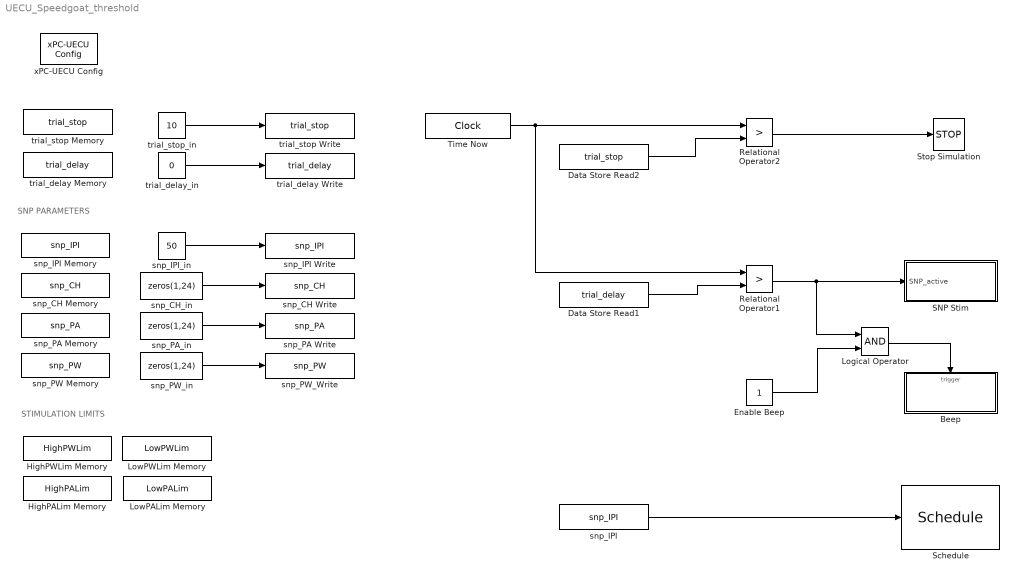
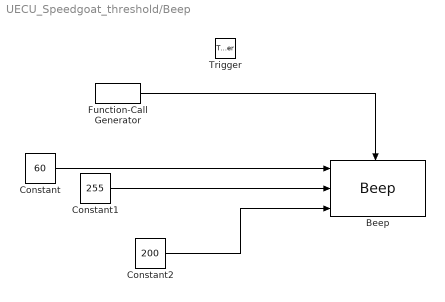
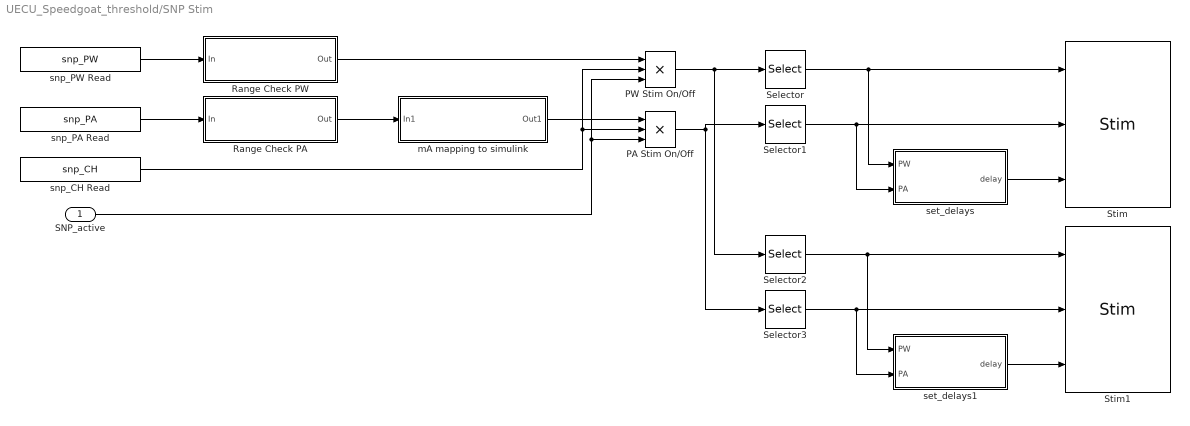
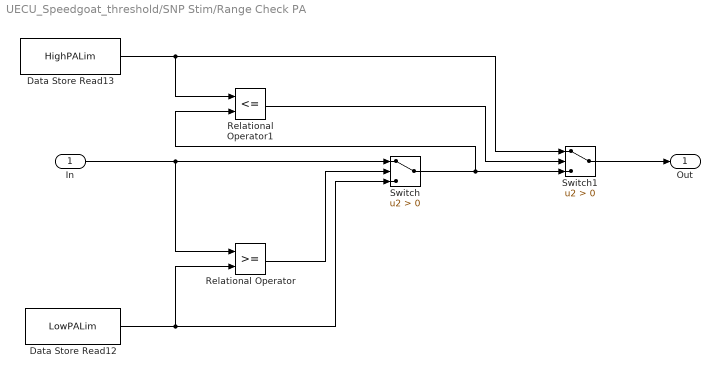
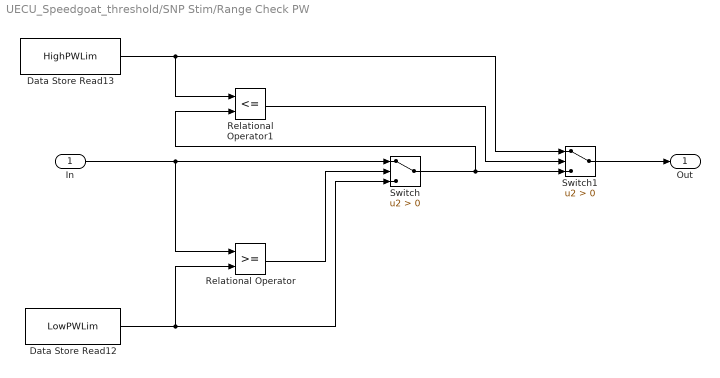
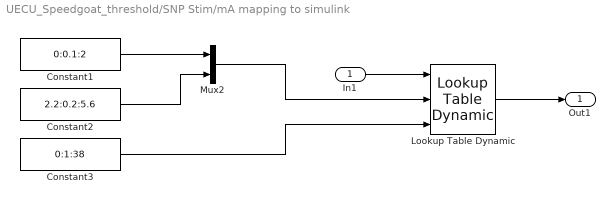
== matlab function UECU_Speedgoat_threshold/SNP Stim/set_delays ==
function delay = set_delays(PW, PA)

PWA = PW.*PA; % figure out which channels have stim
L = length(PWA(PWA~=0)); % find the total number of channels with stim
d = uint8(1:L); % set the delay vector based on the number of channels with stim
PWA(PWA~=0) = d;
delay=uint16(PWA);

== matlab function UECU_Speedgoat_threshold/SNP Stim/set_delays1 ==
function delay = set_delays(PW, PA)

PWA = PW.*PA; % figure out which channels have stim
L = length(PWA(PWA~=0)); % find the total number of channels with stim
d = uint8(1:L); % set the delay vector based on the number of channels with stim
PWA(PWA~=0) = d;
delay=uint16(PWA);

/*
 * UECU_Speedgoat_threshold.cpp
 *
 * Academic License - for use in teaching, academic research, and meeting
 * course requirements at degree granting institutions only.  Not for
 * government, commercial, or other organizational use.
 *
 * Code generation for model "UECU_Speedgoat_threshold".
 *
 * Model version              : 21.61
 * Simulink Coder version : 9.4 (R2020b) 29-Jul-2020
 * C++ source code generated on : Thu Mar 24 12:56:50 2022
 *
 * Target selection: slrealtime.tlc
 * Note: GRT includes extra infrastructure and instrumentation for prototyping
 * Embedded hardware selection: Intel->x86-64 (Linux 64)
 * Code generation objectives: Unspecified
 * Validation result: Not run
 */

#include "UECU_Speedgoat_threshold.h"
#include "UECU_Speedgoat_threshold_private.h"

/* Block signals (default storage) */
B_UECU_Speedgoat_threshold_T UECU_Speedgoat_threshold_B;

/* Block states (default storage) */
DW_UECU_Speedgoat_threshold_T UECU_Speedgoat_threshold_DW;

/* Previous zero-crossings (trigger) states */
PrevZCX_UECU_Speedgoat_thresh_T UECU_Speedgoat_threshol_PrevZCX;

/* Real-time model */
RT_MODEL_UECU_Speedgoat_thres_T UECU_Speedgoat_threshold_M_ =
  RT_MODEL_UECU_Speedgoat_thres_T();
RT_MODEL_UECU_Speedgoat_thres_T *const UECU_Speedgoat_threshold_M =
  &UECU_Speedgoat_threshold_M_;
static const char rcs1[] =
  "$Id: ueculib.tlc 1.34 2011/11/21 19:10:30Z fes-tvrabec Rel $";
static const char rcs2[] =
  "$Id: tonebeep.tlc 1.13 2006/02/10 19:30:21Z sct Rel $";
static const char rcs3[] = "$Id: stim_s.tlc 1.23 2007/11/14 21:56:40Z sct Rel $";
static const char rcs4[] =
  "$Id: schedule.tlc 1.20 2007/11/08 15:06:14Z sct Rel $";
static const char rcs5[] =
  "$Id: uecuxpc.tlc 1.12 2011/11/21 19:11:33Z fes-tvrabec Rel $";
u_char sid[NUM_SID];
u_char syncsig[NUM_SYNC];

/* Lookup Binary Search Utility BINARYSEARCH_real_T */
void BINARYSEARCH_real_T(uint32_T *piLeft, uint32_T *piRght, real_T u, const
  real_T *pData, uint32_T iHi)
{
  /* Find the location of current input value in the data table. */
  *piLeft = 0U;
  *piRght = iHi;
  if (u <= pData[0] ) {
    /* Less than or equal to the smallest point in the table. */
    *piRght = 0U;
  } else if (u >= pData[iHi] ) {
    /* Greater than or equal to the largest point in the table. */
    *piLeft = iHi;
  } else {
    uint32_T i;

    /* Do a binary search. */
    while (( *piRght - *piLeft ) > 1U ) {
      /* Get the average of the left and right indices using to Floor rounding. */
      i = (*piLeft + *piRght) >> 1;

      /* Move either the right index or the left index so that */
      /*  LeftDataPoint <= CurrentValue < RightDataPoint */
      if (u < pData[i] ) {
        *piRght = i;
      } else {
        *piLeft = i;
      }
    }
  }
}

/* Lookup Utility LookUp_U8_real_T */
void LookUp_U8_real_T(uint8_T *pY, const uint8_T *pYData, real_T u, const real_T
                      *pUData, uint32_T iHi)
{
  uint32_T iLeft;
  uint32_T iRght;
  BINARYSEARCH_real_T( &(iLeft), &(iRght), u, pUData, iHi);

  {
    real_T lambda;
    if (pUData[iRght] > pUData[iLeft] ) {
      real_T num;
      real_T den;
      den = pUData[iRght];
      den -= pUData[iLeft];
      num = u;
      num -= pUData[iLeft];
      lambda = num / den;
    } else {
      lambda = 0.0;
    }

    {
      real_T yLeftCast;
      real_T yRghtCast;
      yLeftCast = static_cast<real_T>(pYData[iLeft]);
      yRghtCast = static_cast<real_T>(pYData[iRght]);
      yLeftCast += lambda * ( yRghtCast - yLeftCast );

      {
        real_T rtb_dbl_tmp;
        rtb_dbl_tmp = std::floor(yLeftCast);
        if (rtIsNaN(rtb_dbl_tmp) || rtIsInf(rtb_dbl_tmp)) {
          rtb_dbl_tmp = 0.0;
        } else {
          rtb_dbl_tmp = std::fmod(rtb_dbl_tmp, 256.0);
        }

        (*pY) = rtb_dbl_tmp < 0.0 ? static_cast<uint8_T>(static_cast<int8_T>(-
          static_cast<int8_T>(static_cast<uint8_T>(-rtb_dbl_tmp)))) :
          static_cast<uint8_T>(rtb_dbl_tmp);
      }
    }
  }
}

/*
 * In order to generate Sync messages for synchronous schedules,
 * it is necessary to intercept calls to the MdlOutputs function.
 * This is done by generating our own MdlOutputs, then using a
 * #define to rename the MdlOutputs function generated by RTW.
 * Thus, the system's main function just knows it's calling
 * MdlOutputs, and through sleight of hand we get our function
 * called first, then we chain
 */

/*
 *	In the newest version of Simulink, MdlOutputs reverts to MdlOutpus for
 *	standalone applications, but is called <modelname>_step for simulink realtime.
 *	All calls to MdlOutputs now include tid, but is ignored for single rate
 *	systems. Pass 0 as necessary.
 */
void uecuOriginalMdlOutputs(void);
void UECU_Speedgoat_threshold_step(void)
{
  uecuOriginalMdlOutputs();
}

#define UECU_Speedgoat_threshold_step  uecuOriginalMdlOutputs

/*
 * Output and update for atomic system:
 *    '<S2>/set_delays'
 *    '<S2>/set_delays1'
 */
void UECU_Speedgoat_thres_set_delays(const uint8_T rtu_PW[12], const uint8_T
  rtu_PA[12], B_set_delays_UECU_Speedgoat_t_T *localB)
{
  int32_T L;
  int32_T i;
  int32_T trueCount;
  int8_T y_data[12];
  uint8_T PWA[12];
  uint8_T d_data[12];

  /* MATLAB Function 'SNP Stim/set_delays': '<S7>:1' */
  /* '<S7>:1:3' */
  trueCount = 0;
  for (L = 0; L < 12; L++) {
    i = static_cast<int32_T>(static_cast<uint32_T>(rtu_PW[L]) * rtu_PA[L]);
    if (static_cast<uint32_T>(i) > 255U) {
      i = 255;
    }

    PWA[L] = static_cast<uint8_T>(i);
    i = static_cast<int32_T>(static_cast<uint32_T>(rtu_PW[L]) * rtu_PA[L]);
    if (static_cast<uint32_T>(i) > 255U) {
      i = 255;
    }

    if (i != 0) {
      /* '<S7>:1:4' */
      trueCount++;
    }
  }

  /* '<S7>:1:4' */
  L = trueCount;

  /* '<S7>:1:5' */
  if (L < 1) {
    trueCount = 0;
  } else {
    trueCount = static_cast<int8_T>(L);
    L = static_cast<int8_T>(L) - 1;
    for (i = 0; i <= L; i++) {
      y_data[i] = static_cast<int8_T>(i + 1);
    }
  }

  L = trueCount - 1;
  for (i = 0; i <= L; i++) {
    d_data[i] = static_cast<uint8_T>(y_data[i]);
  }

  trueCount = 0;
  for (L = 0; L < 12; L++) {
    i = static_cast<int32_T>(static_cast<uint32_T>(rtu_PW[L]) * rtu_PA[L]);
    if (static_cast<uint32_T>(i) > 255U) {
      i = 255;
    }

    if (i != 0) {
      /* '<S7>:1:6' */
      PWA[L] = d_data[trueCount];
      trueCount++;
    }
  }

  /* '<S7>:1:7' */
  for (i = 0; i < 12; i++) {
    localB->delay[i] = PWA[i];
  }
}

/* Model step function */
void UECU_Speedgoat_threshold_step(void)
{
  int32_T i;
  boolean_T zcEvent;

  /* Reset subsysRan breadcrumbs */
  srClearBC(UECU_Speedgoat_threshold_DW.Beep_SubsysRanBC_a);

  /* Reset subsysRan breadcrumbs */
  srClearBC(UECU_Speedgoat_threshold_DW.Beep_SubsysRanBC);

  /* DataStoreWrite: '<Root>/snp_IPI Write' incorporates:
   *  Constant: '<Root>/snp_IPI_in'
   */
  UECU_Speedgoat_threshold_DW.snp_IPI =
    UECU_Speedgoat_threshold_cal->snp_IPI_in_Value;

  /* DataStoreWrite: '<Root>/snp_PA Write' incorporates:
   *  Constant: '<Root>/snp_PA_in'
   */
  std::memcpy(&UECU_Speedgoat_threshold_DW.snp_PA[0],
              &UECU_Speedgoat_threshold_cal->snp_PA_in_Value[0], 24U * sizeof
              (real_T));
  for (i = 0; i < 24; i++) {
    /* DataStoreWrite: '<Root>/snp_CH Write' incorporates:
     *  Constant: '<Root>/snp_CH_in'
     */
    UECU_Speedgoat_threshold_DW.snp_CH[i] =
      UECU_Speedgoat_threshold_cal->snp_CH_in_Value[i];

    /* DataStoreWrite: '<Root>/snp_PW_Write' incorporates:
     *  Constant: '<Root>/snp_PW_in'
     */
    UECU_Speedgoat_threshold_DW.snp_PW[i] =
      UECU_Speedgoat_threshold_cal->snp_PW_in_Value[i];
  }

  /* DataStoreWrite: '<Root>/trial_delay Write' incorporates:
   *  Constant: '<Root>/trial_delay_in'
   */
  UECU_Speedgoat_threshold_DW.trial_delay =
    UECU_Speedgoat_threshold_cal->trial_delay_in_Value;

  /* DataStoreWrite: '<Root>/trial_stop Write' incorporates:
   *  Constant: '<Root>/trial_stop_in'
   */
  UECU_Speedgoat_threshold_DW.trial_stop =
    UECU_Speedgoat_threshold_cal->trial_stop_in_Value;

  /* DigitalClock: '<Root>/Time Now' */
  UECU_Speedgoat_threshold_B.TimeNow =
    (((UECU_Speedgoat_threshold_M->Timing.clockTick1+
       UECU_Speedgoat_threshold_M->Timing.clockTickH1* 4294967296.0)) * 0.001);

  /* DataStoreRead: '<Root>/Data Store Read1' */
  UECU_Speedgoat_threshold_B.DataStoreRead1 =
    UECU_Speedgoat_threshold_DW.trial_delay;

  /* RelationalOperator: '<Root>/Relational Operator1' */
  UECU_Speedgoat_threshold_B.RelationalOperator1 =
    (UECU_Speedgoat_threshold_B.TimeNow >
     UECU_Speedgoat_threshold_B.DataStoreRead1);

  /* Logic: '<Root>/Logical Operator' incorporates:
   *  Constant: '<Root>/Enable Beep'
   */
  UECU_Speedgoat_threshold_B.LogicalOperator =
    (UECU_Speedgoat_threshold_B.RelationalOperator1 &&
     UECU_Speedgoat_threshold_cal->EnableBeep_Value);

  /* Outputs for Triggered SubSystem: '<Root>/Beep' incorporates:
   *  TriggerPort: '<S1>/Trigger'
   */
  zcEvent = (UECU_Speedgoat_threshold_B.LogicalOperator &&
             (UECU_Speedgoat_threshol_PrevZCX.Beep_Trig_ZCE != POS_ZCSIG));
  if (zcEvent) {
    /* S-Function (fcgen): '<S1>/Function-Call Generator' incorporates:
     *  SubSystem: '<S1>/Beep'
     */
    /* S-Function (tonebeep): '<S3>/S-Function' incorporates:
     *  Constant: '<S1>/Constant'
     *  Constant: '<S1>/Constant1'
     *  Constant: '<S1>/Constant2'
     */
    {
      struct MelodyNote n[4];
      n[0].note = NOTE_CLEAR;          /* Interrupt anything already playing */
      n[0].dur = 0;
      n[1].note = NOTE_ADDR;           /* Select the system module */
      n[1].dur = 11;
      n[2].note = NOTE_VOL;            /* Select the volume */
      n[2].dur = UECU_Speedgoat_threshold_cal->Constant1_Value_l;
      n[3].note = UECU_Speedgoat_threshold_cal->Constant_Value;/* Play the beep */
      n[3].dur = UECU_Speedgoat_threshold_cal->Constant2_Value_n;
      if (n[3].note < 128) {
        if (melody(0, n, sizeof(n) / sizeof(n[0]))) {
          rtmSetErrorStatus(UECU_Speedgoat_threshold_M, uerror("melody",
            __FILE__, __LINE__));
          return;
        }
      }
    }

    UECU_Speedgoat_threshold_DW.Beep_SubsysRanBC_a = 4;

    /* End of Outputs for S-Function (fcgen): '<S1>/Function-Call Generator' */
    UECU_Speedgoat_threshold_DW.Beep_SubsysRanBC = 4;
  }

  UECU_Speedgoat_threshol_PrevZCX.Beep_Trig_ZCE =
    UECU_Speedgoat_threshold_B.LogicalOperator;

  /* End of Outputs for SubSystem: '<Root>/Beep' */

  /* Outputs for Atomic SubSystem: '<Root>/SNP Stim' */
  /* DataStoreRead: '<S5>/Data Store Read13' */
  UECU_Speedgoat_threshold_B.DataStoreRead13_k =
    UECU_Speedgoat_threshold_DW.HighPWLim;

  /* DataStoreRead: '<S5>/Data Store Read12' */
  UECU_Speedgoat_threshold_B.DataStoreRead12_j =
    UECU_Speedgoat_threshold_DW.LowPWLim;
  for (i = 0; i < 24; i++) {
    /* DataStoreRead: '<S2>/snp_PW Read' */
    UECU_Speedgoat_threshold_B.snp_PWRead[i] =
      UECU_Speedgoat_threshold_DW.snp_PW[i];

    /* RelationalOperator: '<S5>/Relational Operator' */
    UECU_Speedgoat_threshold_B.RelationalOperator[i] =
      (UECU_Speedgoat_threshold_B.snp_PWRead[i] >=
       UECU_Speedgoat_threshold_B.DataStoreRead12_j);

    /* Switch: '<S5>/Switch' */
    if (UECU_Speedgoat_threshold_B.RelationalOperator[i]) {
      /* Switch: '<S5>/Switch' */
      UECU_Speedgoat_threshold_B.Switch_b[i] =
        UECU_Speedgoat_threshold_B.snp_PWRead[i];
    } else {
      /* Switch: '<S5>/Switch' */
      UECU_Speedgoat_threshold_B.Switch_b[i] =
        UECU_Speedgoat_threshold_B.DataStoreRead12_j;
    }

    /* End of Switch: '<S5>/Switch' */

    /* RelationalOperator: '<S5>/Relational Operator1' */
    UECU_Speedgoat_threshold_B.RelationalOperator1_a[i] =
      (UECU_Speedgoat_threshold_B.DataStoreRead13_k <=
       UECU_Speedgoat_threshold_B.Switch_b[i]);

    /* Switch: '<S5>/Switch1' */
    if (UECU_Speedgoat_threshold_B.RelationalOperator1_a[i]) {
      /* Switch: '<S5>/Switch1' */
      UECU_Speedgoat_threshold_B.Switch1_a[i] =
        UECU_Speedgoat_threshold_B.DataStoreRead13_k;
    } else {
      /* Switch: '<S5>/Switch1' */
      UECU_Speedgoat_threshold_B.Switch1_a[i] =
        UECU_Speedgoat_threshold_B.Switch_b[i];
    }

    /* End of Switch: '<S5>/Switch1' */

    /* DataStoreRead: '<S2>/snp_CH Read' */
    UECU_Speedgoat_threshold_B.snp_CHRead[i] =
      UECU_Speedgoat_threshold_DW.snp_CH[i];
  }

  for (i = 0; i < 24; i++) {
    /* Product: '<S2>/PW Stim On//Off' */
    UECU_Speedgoat_threshold_B.PWStimOnOff[i] = static_cast<uint8_T>
      (UECU_Speedgoat_threshold_B.RelationalOperator1 ?
       UECU_Speedgoat_threshold_B.snp_CHRead[i] ? static_cast<int32_T>
       (UECU_Speedgoat_threshold_B.Switch1_a[i]) : 0 : 0);
  }

  /* DataStoreRead: '<S4>/Data Store Read13' */
  UECU_Speedgoat_threshold_B.DataStoreRead13 =
    UECU_Speedgoat_threshold_DW.HighPALim;

  /* DataStoreRead: '<S4>/Data Store Read12' */
  UECU_Speedgoat_threshold_B.DataStoreRead12 =
    UECU_Speedgoat_threshold_DW.LowPALim;
  for (i = 0; i < 24; i++) {
    /* DataStoreRead: '<S2>/snp_PA Read' */
    UECU_Speedgoat_threshold_B.snp_PARead[i] =
      UECU_Speedgoat_threshold_DW.snp_PA[i];

    /* RelationalOperator: '<S4>/Relational Operator' */
    UECU_Speedgoat_threshold_B.RelationalOperator_i[i] =
      (UECU_Speedgoat_threshold_B.snp_PARead[i] >=
       UECU_Speedgoat_threshold_B.DataStoreRead12);

    /* Switch: '<S4>/Switch' */
    if (UECU_Speedgoat_threshold_B.RelationalOperator_i[i]) {
      /* Switch: '<S4>/Switch' */
      UECU_Speedgoat_threshold_B.Switch[i] =
        UECU_Speedgoat_threshold_B.snp_PARead[i];
    } else {
      /* Switch: '<S4>/Switch' */
      UECU_Speedgoat_threshold_B.Switch[i] =
        UECU_Speedgoat_threshold_B.DataStoreRead12;
    }

    /* End of Switch: '<S4>/Switch' */

    /* RelationalOperator: '<S4>/Relational Operator1' */
    UECU_Speedgoat_threshold_B.RelationalOperator1_m[i] =
      (UECU_Speedgoat_threshold_B.DataStoreRead13 <=
       UECU_Speedgoat_threshold_B.Switch[i]);
  }

  for (i = 0; i < 24; i++) {
    /* Switch: '<S4>/Switch1' */
    if (UECU_Speedgoat_threshold_B.RelationalOperator1_m[i]) {
      /* Switch: '<S4>/Switch1' */
      UECU_Speedgoat_threshold_B.Switch1[i] =
        UECU_Speedgoat_threshold_B.DataStoreRead13;
    } else {
      /* Switch: '<S4>/Switch1' */
      UECU_Speedgoat_threshold_B.Switch1[i] =
        UECU_Speedgoat_threshold_B.Switch[i];
    }

    /* End of Switch: '<S4>/Switch1' */
  }

  /* SignalConversion generated from: '<S6>/Lookup Table Dynamic' incorporates:
   *  Constant: '<S6>/Constant1'
   *  Constant: '<S6>/Constant2'
   */
  std::memcpy(&UECU_Speedgoat_threshold_B.TmpSignalConversionAtLookupTabl[0],
              &UECU_Speedgoat_threshold_cal->Constant1_Value[0], 21U * sizeof
              (real_T));
  std::memcpy(&UECU_Speedgoat_threshold_B.TmpSignalConversionAtLookupTabl[21],
              &UECU_Speedgoat_threshold_cal->Constant2_Value[0], 18U * sizeof
              (real_T));

  /* S-Function (sfix_look1_dyn): '<S6>/Lookup Table Dynamic' incorporates:
   *  Constant: '<S6>/Constant3'
   */
  /* Dynamic Look-Up Table Block: '<S6>/Lookup Table Dynamic'
   * Input0  Data Type:  Floating Point real_T
   * Input1  Data Type:  Floating Point real_T
   * Input2  Data Type:  Integer        U8
   * Output0 Data Type:  Integer        U8
   * Lookup Method: Linear_Endpoint
   *
   */
  {
    int_T i1;
    const real_T *u0 = &UECU_Speedgoat_threshold_B.Switch1[0];
    uint8_T *y0 = &UECU_Speedgoat_threshold_B.LookupTableDynamic[0];
    for (i1=0; i1 < 24; i1++) {
      LookUp_U8_real_T( &(y0[i1]),
                       &UECU_Speedgoat_threshold_cal->Constant3_Value[0], u0[i1],
                       &UECU_Speedgoat_threshold_B.TmpSignalConversionAtLookupTabl
                       [0], 38U);
    }
  }

  for (i = 0; i < 24; i++) {
    /* Product: '<S2>/PA Stim On//Off' */
    UECU_Speedgoat_threshold_B.PAStimOnOff[i] = static_cast<uint8_T>
      (UECU_Speedgoat_threshold_B.RelationalOperator1 ?
       UECU_Speedgoat_threshold_B.snp_CHRead[i] ? static_cast<int32_T>
       (UECU_Speedgoat_threshold_B.LookupTableDynamic[i]) : 0 : 0);
  }

  /* MATLAB Function: '<S2>/set_delays' */
  UECU_Speedgoat_thres_set_delays(&UECU_Speedgoat_threshold_B.PWStimOnOff[0],
    &UECU_Speedgoat_threshold_B.PAStimOnOff[0],
    &UECU_Speedgoat_threshold_B.sf_set_delays);

  /* S-Function (stim_s): '<S2>/Stim' */
  {
    struct StimEvent ev;
    ev.reserved = 0;

    {
      int_T i1;
      const uint8_T *u0 = &UECU_Speedgoat_threshold_B.PWStimOnOff[0];
      const uint8_T *u1 = &UECU_Speedgoat_threshold_B.PAStimOnOff[0];
      const uint16_T *u2 = &UECU_Speedgoat_threshold_B.sf_set_delays.delay[0];
      const uint8_T *p_Channels = UECU_Speedgoat_threshold_ConstP.pooled2;
      uint8_T *dw_EventID = &UECU_Speedgoat_threshold_DW.Stim_EventID[0];
      boolean_T *dw_Created = &UECU_Speedgoat_threshold_DW.Stim_Created[0];
      uint8_T *dw_PW = &UECU_Speedgoat_threshold_DW.Stim_PW[0];
      uint8_T *dw_Amp = &UECU_Speedgoat_threshold_DW.Stim_Amp[0];
      uint16_T *dw_Delay = &UECU_Speedgoat_threshold_DW.Stim_Delay[0];
      for (i1=0; i1 < 12; i1++) {
        ev.pw = u0[i1];
        ev.amp = u1[i1];
        if (dw_Created[i1]) {
          if (ev.pw != dw_PW[i1] || ev.amp != dw_Amp[i1]) {
            if (change_event_params(1, dw_EventID[i1], &ev, sizeof(ev)) < 0) {
              rtmSetErrorStatus(UECU_Speedgoat_threshold_M, uerror(
                "change_event_params", __FILE__, __LINE__));
              return;
            }
          }

          if (u2[i1] != dw_Delay[i1]) {
            if (change_event_sched(1, dw_EventID[i1], sid[0], u2[i1], 100) < 0)
            {
              rtmSetErrorStatus(UECU_Speedgoat_threshold_M, uerror(
                "change_event_sched", __FILE__, __LINE__));
              return;
            }
          }
        } else {
          int e;
          dw_EventID[i1] = e = create_event(1, sid[0], u2[i1], 100, et_StimEvent,
            (0 << 6) + (p_Channels[i1]), &ev, sizeof(ev));
          if (e < 0) {
            rtmSetErrorStatus(UECU_Speedgoat_threshold_M, uerror("create_event",
              __FILE__, __LINE__));
            return;
          }

          dw_Created[i1] = 1;
        }

        dw_PW[i1] = ev.pw;
        dw_Amp[i1] = ev.amp;
        dw_Delay[i1] = u2[i1];
      }
    }
  }

  /* MATLAB Function: '<S2>/set_delays1' */
  UECU_Speedgoat_thres_set_delays(&UECU_Speedgoat_threshold_B.PWStimOnOff[12],
    &UECU_Speedgoat_threshold_B.PAStimOnOff[12],
    &UECU_Speedgoat_threshold_B.sf_set_delays1);

  /* S-Function (stim_s): '<S2>/Stim1' */
  {
    struct StimEvent ev;
    ev.reserved = 0;

    {
      int_T i1;
      const uint8_T *u0 = &UECU_Speedgoat_threshold_B.PWStimOnOff[12];
      const uint8_T *u1 = &UECU_Speedgoat_threshold_B.PAStimOnOff[12];
      const uint16_T *u2 = &UECU_Speedgoat_threshold_B.sf_set_delays1.delay[0];
      const uint8_T *p_Channels = UECU_Speedgoat_threshold_ConstP.pooled2;
      uint8_T *dw_EventID = &UECU_Speedgoat_threshold_DW.Stim1_EventID[0];
      boolean_T *dw_Created = &UECU_Speedgoat_threshold_DW.Stim1_Created[0];
      uint8_T *dw_PW = &UECU_Speedgoat_threshold_DW.Stim1_PW[0];
      uint8_T *dw_Amp = &UECU_Speedgoat_threshold_DW.Stim1_Amp[0];
      uint16_T *dw_Delay = &UECU_Speedgoat_threshold_DW.Stim1_Delay[0];
      for (i1=0; i1 < 12; i1++) {
        ev.pw = u0[i1];
        ev.amp = u1[i1];
        if (dw_Created[i1]) {
          if (ev.pw != dw_PW[i1] || ev.amp != dw_Amp[i1]) {
            if (change_event_params(2, dw_EventID[i1], &ev, sizeof(ev)) < 0) {
              rtmSetErrorStatus(UECU_Speedgoat_threshold_M, uerror(
                "change_event_params", __FILE__, __LINE__));
              return;
            }
          }

          if (u2[i1] != dw_Delay[i1]) {
            if (change_event_sched(2, dw_EventID[i1], sid[1], u2[i1], 100) < 0)
            {
              rtmSetErrorStatus(UECU_Speedgoat_threshold_M, uerror(
                "change_event_sched", __FILE__, __LINE__));
              return;
            }
          }
        } else {
          int e;
          dw_EventID[i1] = e = create_event(2, sid[1], u2[i1], 100, et_StimEvent,
            (0 << 6) + (p_Channels[i1]), &ev, sizeof(ev));
          if (e < 0) {
            rtmSetErrorStatus(UECU_Speedgoat_threshold_M, uerror("create_event",
              __FILE__, __LINE__));
            return;
          }

          dw_Created[i1] = 1;
        }

        dw_PW[i1] = ev.pw;
        dw_Amp[i1] = ev.amp;
        dw_Delay[i1] = u2[i1];
      }
    }
  }

  /* End of Outputs for SubSystem: '<Root>/SNP Stim' */

  /* DataStoreRead: '<Root>/Data Store Read2' */
  UECU_Speedgoat_threshold_B.DataStoreRead2 =
    UECU_Speedgoat_threshold_DW.trial_stop;

  /* RelationalOperator: '<Root>/Relational Operator2' */
  UECU_Speedgoat_threshold_B.RelationalOperator2 =
    (UECU_Speedgoat_threshold_B.TimeNow >
     UECU_Speedgoat_threshold_B.DataStoreRead2);

  /* Stop: '<Root>/Stop Simulation' */
  if (UECU_Speedgoat_threshold_B.RelationalOperator2) {
    rtmSetStopRequested(UECU_Speedgoat_threshold_M, 1);
  }

  /* End of Stop: '<Root>/Stop Simulation' */

  /* DataStoreRead: '<Root>/snp_IPI' */
  UECU_Speedgoat_threshold_B.snp_IPI = UECU_Speedgoat_threshold_DW.snp_IPI;

  /* S-Function (schedule): '<Root>/Schedule' */
  /*
   * About '<Root>/Schedule':
   *   Schedule name: schedule1
   */
  {
    u_short dur;
    dur = UECU_Speedgoat_threshold_B.snp_IPI;
    if (dur != UECU_Speedgoat_threshold_DW.Schedule_Duration) {
      /* Change the schedule time */
      if (change_schedule(1, sid[0], syncsig[0], dur) < 0) {/* schedule1 */
        rtmSetErrorStatus(UECU_Speedgoat_threshold_M, uerror("change_schedule",
          __FILE__, __LINE__));
        return;
      }

      if (change_schedule(2, sid[1], syncsig[0], dur) < 0) {/* schedule1 */
        rtmSetErrorStatus(UECU_Speedgoat_threshold_M, uerror("change_schedule",
          __FILE__, __LINE__));
        return;
      }

      if (UECU_Speedgoat_threshold_DW.Schedule_Duration == 0) {
        /* Start the schedule running */
        if (sync(1, syncsig[0]) < 0) { /* schedule1 */
          rtmSetErrorStatus(UECU_Speedgoat_threshold_M, uerror("sync", __FILE__,
            __LINE__));
          return;
        }

        if (sync(2, syncsig[0]) < 0) { /* schedule1 */
          rtmSetErrorStatus(UECU_Speedgoat_threshold_M, uerror("sync", __FILE__,
            __LINE__));
          return;
        }
      }

      UECU_Speedgoat_threshold_DW.Schedule_Duration = dur;
    }
  }

  /* S-Function (uecuxpc): '<Root>/xPC-UECU Config' */
  uecu_poll();

  /* Update absolute time for base rate */
  /* The "clockTick0" counts the number of times the code of this task has
   * been executed. The absolute time is the multiplication of "clockTick0"
   * and "Timing.stepSize0". Size of "clockTick0" ensures timer will not
   * overflow during the application lifespan selected.
   * Timer of this task consists of two 32 bit unsigned integers.
   * The two integers represent the low bits Timing.clockTick0 and the high bits
   * Timing.clockTickH0. When the low bit overflows to 0, the high bits increment.
   */
  if (!(++UECU_Speedgoat_threshold_M->Timing.clockTick0)) {
    ++UECU_Speedgoat_threshold_M->Timing.clockTickH0;
  }

  UECU_Speedgoat_threshold_M->Timing.t[0] =
    UECU_Speedgoat_threshold_M->Timing.clockTick0 *
    UECU_Speedgoat_threshold_M->Timing.stepSize0 +
    UECU_Speedgoat_threshold_M->Timing.clockTickH0 *
    UECU_Speedgoat_threshold_M->Timing.stepSize0 * 4294967296.0;

  {
    /* Update absolute timer for sample time: [0.001s, 0.0s] */
    /* The "clockTick1" counts the number of times the code of this task has
     * been executed. The resolution of this integer timer is 0.001, which is the step size
     * of the task. Size of "clockTick1" ensures timer will not overflow during the
     * application lifespan selected.
     * Timer of this task consists of two 32 bit unsigned integers.
     * The two integers represent the low bits Timing.clockTick1 and the high bits
     * Timing.clockTickH1. When the low bit overflows to 0, the high bits increment.
     */
    UECU_Speedgoat_threshold_M->Timing.clockTick1++;
    if (!UECU_Speedgoat_threshold_M->Timing.clockTick1) {
      UECU_Speedgoat_threshold_M->Timing.clockTickH1++;
    }
  }
}
